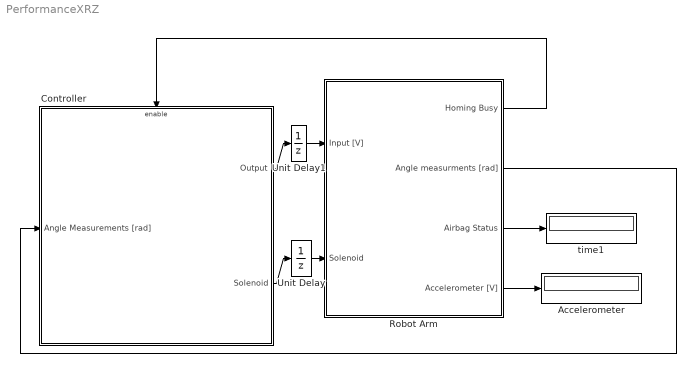
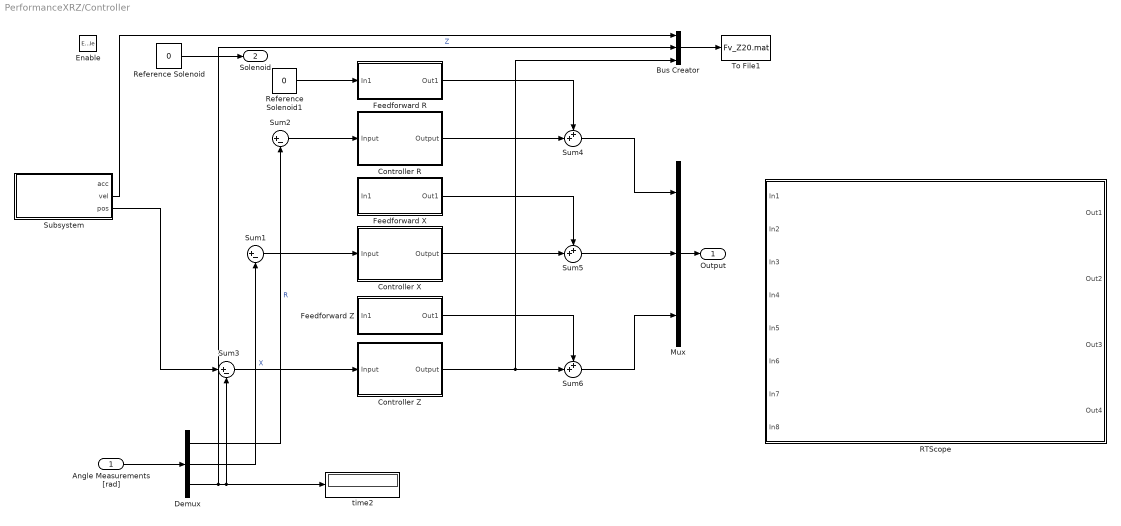
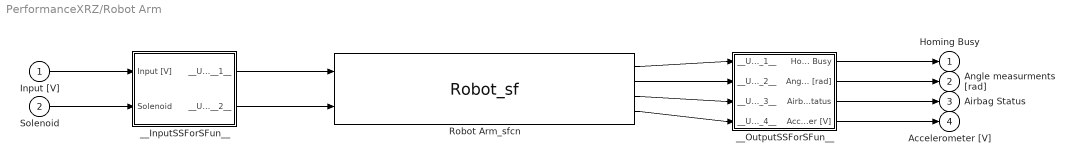
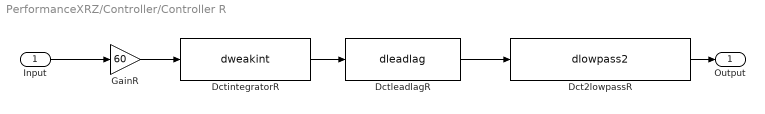
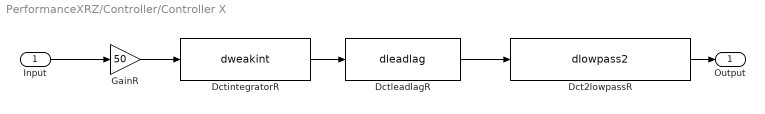
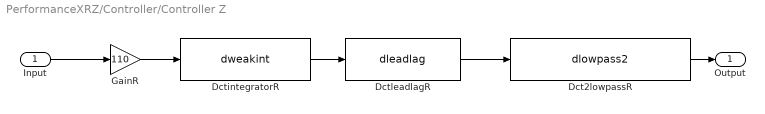
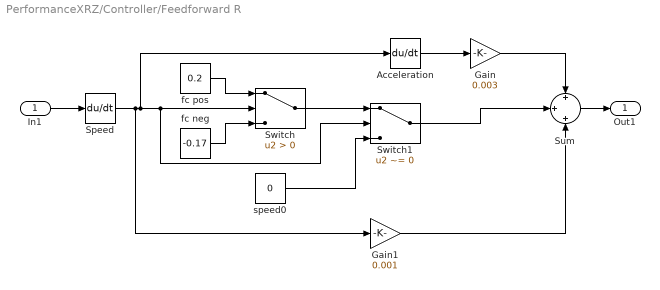
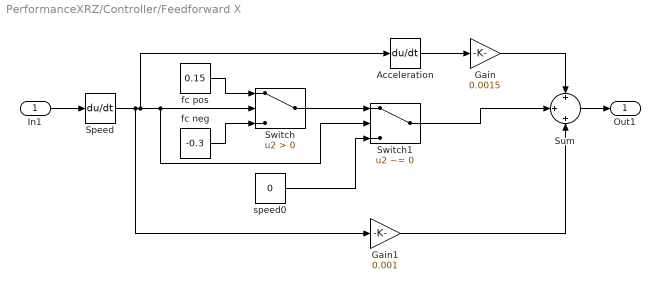
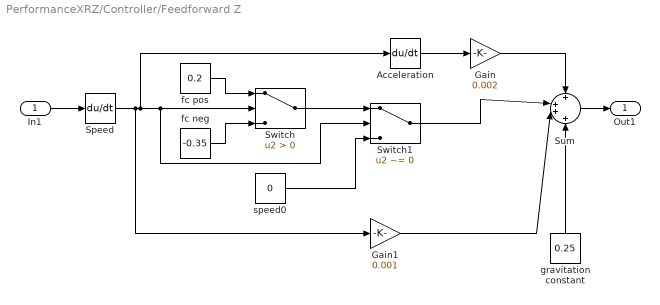
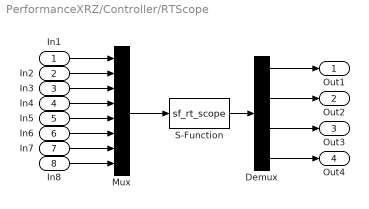
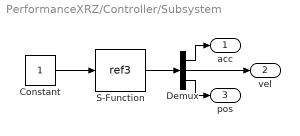
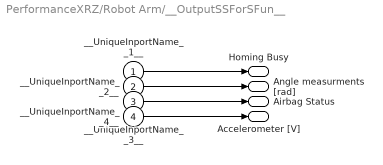
== system PerformanceXRZ/Robot Arm/__InputSSForSFun__ ==
  Input [V] : Inport
  Solenoid : Inport  Port=2
  __UniqueOutportName__1__ : Outport
  __UniqueOutportName__2__ : Outport  Port=2
  wires:
  Input [V]/1 -> __UniqueOutportName__1__/1
  Solenoid/1 -> __UniqueOutportName__2__/1

/*
 * PerformanceXRZ.c
 *
 * Code generation for model "PerformanceXRZ.mdl".
 *
 * Model version              : 1.943
 * Simulink Coder version : 8.1 (R2011b) 08-Jul-2011
 * C source code generated on : Mon Mar 21 19:34:07 2016
 *
 * Target selection: ectarget.tlc
 * Note: GRT includes extra infrastructure and instrumentation for prototyping
 * Embedded hardware selection: 32-bit Generic
 * Code generation objectives: Unspecified
 * Validation result: Not run
 */
#include "PerformanceXRZ.h"
#include "PerformanceXRZ_private.h"
#include "PerformanceXRZ_dt.h"
#undef S_FUNCTION_NAME
#if !defined(RTW_GENERATED_SFCN_TUNABLE_PRMS_Robot_sf)
#define RTW_GENERATED_SFCN_TUNABLE_PRMS_Robot_sf
#endif

#include "Robot_sf.h"

const real_T PerformanceXRZ_RGND = 0.0;/* real_T ground */

/* Block signals (auto storage) */
BlockIO_PerformanceXRZ PerformanceXRZ_B;

/* Block states (auto storage) */
D_Work_PerformanceXRZ PerformanceXRZ_DWork;

/* Real-time model */
RT_MODEL_PerformanceXRZ PerformanceXRZ_M_;
RT_MODEL_PerformanceXRZ *const PerformanceXRZ_M = &PerformanceXRZ_M_;

/*
 * Writes out MAT-file header.  Returns success or failure.
 * Returns:
 *      0 - success
 *      1 - failure
 */
int_T rt_WriteMat4FileHeader(FILE *fp, int32_T m, int32_T n, const char *name)
{
  typedef enum { ELITTLE_ENDIAN, EBIG_ENDIAN } ByteOrder;

  int16_T one = 1;
  ByteOrder byteOrder = (*((int8_T *)&one)==1) ? ELITTLE_ENDIAN : EBIG_ENDIAN;
  int32_T type = (byteOrder == ELITTLE_ENDIAN) ? 0: 1000;
  int32_T imagf = 0;
  int32_T name_len = strlen(name) + 1;
  if ((fwrite(&type, sizeof(int32_T), 1, fp) == 0) ||
      (fwrite(&m, sizeof(int32_T), 1, fp) == 0) ||
      (fwrite(&n, sizeof(int32_T), 1, fp) == 0) ||
      (fwrite(&imagf, sizeof(int32_T), 1, fp) == 0) ||
      (fwrite(&name_len, sizeof(int32_T), 1, fp) == 0) ||
      (fwrite(name, sizeof(char), name_len, fp) == 0)) {
    return(1);
  } else {
    return(0);
  }
}                                      /* end rt_WriteMat4FileHeader */

/* Model output function */
void PerformanceXRZ_output(int_T tid)
{
  /* local block i/o variables */
  real_T rtb_TmpSignalConversionAtToFile[3];
  real_T rtb_Switch1;
  real_T rtb_Gain;
  real_T rtb_Gain_o;
  real_T rtb_Sum;

  /* Reset subsysRan breadcrumbs */
  srClearBC(PerformanceXRZ_DWork.Controller_SubsysRanBC);

  /* UnitDelay: '<Root>/Unit Delay1' */
  /* RTWBLOCK_START_COMMENT */
  PerformanceXRZ_B.UnitDelay1[0] = PerformanceXRZ_DWork.UnitDelay1_DSTATE[0];
  PerformanceXRZ_B.UnitDelay1[1] = PerformanceXRZ_DWork.UnitDelay1_DSTATE[1];
  PerformanceXRZ_B.UnitDelay1[2] = PerformanceXRZ_DWork.UnitDelay1_DSTATE[2];

  /* UnitDelay: '<Root>/Unit Delay' */
  PerformanceXRZ_B.UnitDelay = PerformanceXRZ_DWork.UnitDelay_DSTATE;

  /* RTW Generated Level2 S-Function Block: '<S2>/Robot Arm_sfcn' (Robot_sf) */
  {
    SimStruct *rts = PerformanceXRZ_M->childSfunctions[11];
    sfcnOutputs(rts, 0);
  }

  /* Outputs for Enabled SubSystem: '<Root>/Controller' incorporates:
   *  EnablePort: '<S1>/Enable'
   */
  if (PerformanceXRZ_B.RobotArm_sfcn_o1 > 0.0) {
    if (!PerformanceXRZ_DWork.Controller_MODE) {
      PerformanceXRZ_DWork.Controller_MODE = TRUE;
    }
  } else {
    if (PerformanceXRZ_DWork.Controller_MODE) {
      PerformanceXRZ_DWork.Controller_MODE = FALSE;
    }
  }

  if (PerformanceXRZ_DWork.Controller_MODE) {
    /* Level2 S-Function Block: '<S10>/S-Function' (ref3) */
    {
      SimStruct *rts = PerformanceXRZ_M->childSfunctions[0];
      sfcnOutputs(rts, 0);
    }

    /* Gain: '<S5>/GainR' incorporates:
     *  Sum: '<S1>/Sum3'
     */
    PerformanceXRZ_B.GainR = (PerformanceXRZ_B.SFunction[2] -
      PerformanceXRZ_B.RobotArm_sfcn_o2[2]) * PerformanceXRZ_P.GainR_Gain;

    /* Level2 S-Function Block: '<S5>/DctintegratorR' (dweakint) */
    {
      SimStruct *rts = PerformanceXRZ_M->childSfunctions[1];
      sfcnOutputs(rts, 1);
    }

    /* Level2 S-Function Block: '<S5>/DctleadlagR' (dleadlag) */
    {
      SimStruct *rts = PerformanceXRZ_M->childSfunctions[2];
      sfcnOutputs(rts, 1);
    }

    /* Level2 S-Function Block: '<S5>/Dct2lowpassR' (dlowpass2) */
    {
      SimStruct *rts = PerformanceXRZ_M->childSfunctions[3];
      sfcnOutputs(rts, 1);
    }

    /* SignalConversion: '<S1>/TmpSignal ConversionAtTo File1Inport1' */
    rtb_TmpSignalConversionAtToFile[0] = PerformanceXRZ_B.SFunction[1];
    rtb_TmpSignalConversionAtToFile[1] = PerformanceXRZ_B.RobotArm_sfcn_o2[2];
    rtb_TmpSignalConversionAtToFile[2] = PerformanceXRZ_B.Dct2lowpassR;

    /* ToFile: '<S1>/To File1' */
    if (!(++PerformanceXRZ_DWork.ToFile1_IWORK.Decimation % 1) &&
        (PerformanceXRZ_DWork.ToFile1_IWORK.Count*4)+1 < 100000000 ) {
      FILE *fp = (FILE *) PerformanceXRZ_DWork.ToFile1_PWORK.FilePtr;
      if (fp != (NULL)) {
        real_T u[4];
        PerformanceXRZ_DWork.ToFile1_IWORK.Decimation = 0;
        u[0] = PerformanceXRZ_M->Timing.t[1];
        u[1] = rtb_TmpSignalConversionAtToFile[0];
        u[2] = rtb_TmpSignalConversionAtToFile[1];
        u[3] = rtb_TmpSignalConversionAtToFile[2];
        if (fwrite(u, sizeof(real_T), 4, fp) != 4) {
          rtmSetErrorStatus(PerformanceXRZ_M,
                            "Error writing to MAT-file Fv_Z20.mat");
          return;
        }

        if (((++PerformanceXRZ_DWork.ToFile1_IWORK.Count)*4)+1 >= 100000000) {
          (void)fprintf(stdout,
                        "*** The ToFile block will stop logging data before\n"
                        "    the simulation has ended, because it has reached\n"
                        "    the maximum number of elements (100000000)\n"
                        "    allowed in MAT-file Fv_Z20.mat.\n");
        }
      }
    }

    /* Gain: '<S3>/GainR' incorporates:
     *  Sum: '<S1>/Sum2'
     */
    PerformanceXRZ_B.GainR_g = (0.0 - PerformanceXRZ_B.RobotArm_sfcn_o2[0]) *
      PerformanceXRZ_P.GainR_Gain_f;

    /* Level2 S-Function Block: '<S3>/DctintegratorR' (dweakint) */
    {
      SimStruct *rts = PerformanceXRZ_M->childSfunctions[4];
      sfcnOutputs(rts, 1);
    }

    /* Level2 S-Function Block: '<S3>/DctleadlagR' (dleadlag) */
    {
      SimStruct *rts = PerformanceXRZ_M->childSfunctions[5];
      sfcnOutputs(rts, 1);
    }

    /* Level2 S-Function Block: '<S3>/Dct2lowpassR' (dlowpass2) */
    {
      SimStruct *rts = PerformanceXRZ_M->childSfunctions[6];
      sfcnOutputs(rts, 1);
    }

    /* Gain: '<S4>/GainR' incorporates:
     *  Sum: '<S1>/Sum1'
     */
    PerformanceXRZ_B.GainR_h = (0.0 - PerformanceXRZ_B.RobotArm_sfcn_o2[1]) *
      PerformanceXRZ_P.GainR_Gain_h;

    /* Level2 S-Function Block: '<S4>/DctintegratorR' (dweakint) */
    {
      SimStruct *rts = PerformanceXRZ_M->childSfunctions[7];
      sfcnOutputs(rts, 1);
    }

    /* Level2 S-Function Block: '<S4>/DctleadlagR' (dleadlag) */
    {
      SimStruct *rts = PerformanceXRZ_M->childSfunctions[8];
      sfcnOutputs(rts, 1);
    }

    /* Level2 S-Function Block: '<S4>/Dct2lowpassR' (dlowpass2) */
    {
      SimStruct *rts = PerformanceXRZ_M->childSfunctions[9];
      sfcnOutputs(rts, 1);
    }

    /* Derivative: '<S6>/Speed' */
    {
      real_T t = PerformanceXRZ_M->Timing.t[0];
      real_T timeStampA = PerformanceXRZ_DWork.Speed_RWORK.TimeStampA;
      real_T timeStampB = PerformanceXRZ_DWork.Speed_RWORK.TimeStampB;
      real_T *lastU = &PerformanceXRZ_DWork.Speed_RWORK.LastUAtTimeA;
      if (timeStampA >= t && timeStampB >= t) {
        PerformanceXRZ_B.Speed = 0.0;
      } else {
        real_T deltaT;
        real_T lastTime = timeStampA;
        if (timeStampA < timeStampB) {
          if (timeStampB < t) {
            lastTime = timeStampB;
            lastU = &PerformanceXRZ_DWork.Speed_RWORK.LastUAtTimeB;
          }
        } else if (timeStampA >= t) {
          lastTime = timeStampB;
          lastU = &PerformanceXRZ_DWork.Speed_RWORK.LastUAtTimeB;
        }

        deltaT = t - lastTime;
        PerformanceXRZ_B.Speed = (PerformanceXRZ_P.ReferenceSolenoid1_Value -
          *lastU++) / deltaT;
      }
    }

    /* Derivative: '<S6>/Acceleration' */
    {
      real_T t = PerformanceXRZ_M->Timing.t[0];
      real_T timeStampA = PerformanceXRZ_DWork.Acceleration_RWORK.TimeStampA;
      real_T timeStampB = PerformanceXRZ_DWork.Acceleration_RWORK.TimeStampB;
      real_T *lastU = &PerformanceXRZ_DWork.Acceleration_RWORK.LastUAtTimeA;
      if (timeStampA >= t && timeStampB >= t) {
        rtb_Switch1 = 0.0;
      } else {
        real_T deltaT;
        real_T lastTime = timeStampA;
        if (timeStampA < timeStampB) {
          if (timeStampB < t) {
            lastTime = timeStampB;
            lastU = &PerformanceXRZ_DWork.Acceleration_RWORK.LastUAtTimeB;
          }
        } else if (timeStampA >= t) {
          lastTime = timeStampB;
          lastU = &PerformanceXRZ_DWork.Acceleration_RWORK.LastUAtTimeB;
        }

        deltaT = t - lastTime;
        rtb_Switch1 = (PerformanceXRZ_B.Speed - *lastU++) / deltaT;
      }
    }

    /* Gain: '<S6>/Gain' */
    rtb_Gain = PerformanceXRZ_P.Gain_Gain * rtb_Switch1;

    /* Switch: '<S6>/Switch1' incorporates:
     *  Constant: '<S6>/speed0'
     */
    if (PerformanceXRZ_B.Speed != 0.0) {
      /* Switch: '<S6>/Switch' incorporates:
       *  Constant: '<S6>/fc neg'
       *  Constant: '<S6>/fc pos'
       */
      if (PerformanceXRZ_B.Speed > PerformanceXRZ_P.Switch_Threshold) {
        rtb_Switch1 = PerformanceXRZ_P.fcpos_Value;
      } else {
        rtb_Switch1 = PerformanceXRZ_P.fcneg_Value;
      }

      /* End of Switch: '<S6>/Switch' */
    } else {
      rtb_Switch1 = PerformanceXRZ_P.speed0_Value;
    }

    /* End of Switch: '<S6>/Switch1' */

    /* Sum: '<S6>/Sum' incorporates:
     *  Gain: '<S6>/Gain1'
     */
    rtb_Sum = (rtb_Gain + rtb_Switch1) + PerformanceXRZ_P.Gain1_Gain *
      PerformanceXRZ_B.Speed;

    /* Derivative: '<S7>/Speed' */
    {
      real_T t = PerformanceXRZ_M->Timing.t[0];
      real_T timeStampA = PerformanceXRZ_DWork.Speed_RWORK_f.TimeStampA;
      real_T timeStampB = PerformanceXRZ_DWork.Speed_RWORK_f.TimeStampB;
      real_T *lastU = &PerformanceXRZ_DWork.Speed_RWORK_f.LastUAtTimeA;
      if (timeStampA >= t && timeStampB >= t) {
        PerformanceXRZ_B.Speed_m = 0.0;
      } else {
        real_T deltaT;
        real_T lastTime = timeStampA;
        if (timeStampA < timeStampB) {
          if (timeStampB < t) {
            lastTime = timeStampB;
            lastU = &PerformanceXRZ_DWork.Speed_RWORK_f.LastUAtTimeB;
          }
        } else if (timeStampA >= t) {
          lastTime = timeStampB;
          lastU = &PerformanceXRZ_DWork.Speed_RWORK_f.LastUAtTimeB;
        }

        deltaT = t - lastTime;
        PerformanceXRZ_B.Speed_m = (0.0 - *lastU++) / deltaT;
      }
    }

    /* Derivative: '<S7>/Acceleration' */
    {
      real_T t = PerformanceXRZ_M->Timing.t[0];
      real_T timeStampA = PerformanceXRZ_DWork.Acceleration_RWORK_d.TimeStampA;
      real_T timeStampB = PerformanceXRZ_DWork.Acceleration_RWORK_d.TimeStampB;
      real_T *lastU = &PerformanceXRZ_DWork.Acceleration_RWORK_d.LastUAtTimeA;
      if (timeStampA >= t && timeStampB >= t) {
        rtb_Switch1 = 0.0;
      } else {
        real_T deltaT;
        real_T lastTime = timeStampA;
        if (timeStampA < timeStampB) {
          if (timeStampB < t) {
            lastTime = timeStampB;
            lastU = &PerformanceXRZ_DWork.Acceleration_RWORK_d.LastUAtTimeB;
          }
        } else if (timeStampA >= t) {
          lastTime = timeStampB;
          lastU = &PerformanceXRZ_DWork.Acceleration_RWORK_d.LastUAtTimeB;
        }

        deltaT = t - lastTime;
        rtb_Switch1 = (PerformanceXRZ_B.Speed_m - *lastU++) / deltaT;
      }
    }

    /* Gain: '<S7>/Gain' */
    rtb_Gain = PerformanceXRZ_P.Gain_Gain_b * rtb_Switch1;

    /* Switch: '<S7>/Switch1' incorporates:
     *  Constant: '<S7>/speed0'
     */
    if (PerformanceXRZ_B.Speed_m != 0.0) {
      /* Switch: '<S7>/Switch' incorporates:
       *  Constant: '<S7>/fc neg'
       *  Constant: '<S7>/fc pos'
       */
      if (PerformanceXRZ_B.Speed_m > PerformanceXRZ_P.Switch_Threshold_g) {
        rtb_Switch1 = PerformanceXRZ_P.fcpos_Value_g;
      } else {
        rtb_Switch1 = PerformanceXRZ_P.fcneg_Value_k;
      }

      /* End of Switch: '<S7>/Switch' */
    } else {
      rtb_Switch1 = PerformanceXRZ_P.speed0_Value_i;
    }

    /* End of Switch: '<S7>/Switch1' */

    /* Sum: '<S7>/Sum' incorporates:
     *  Gain: '<S7>/Gain1'
     */
    rtb_Gain = (rtb_Gain + rtb_Switch1) + PerformanceXRZ_P.Gain1_Gain_k *
      PerformanceXRZ_B.Speed_m;

    /* Derivative: '<S8>/Speed' */
    {
      real_T t = PerformanceXRZ_M->Timing.t[0];
      real_T timeStampA = PerformanceXRZ_DWork.Speed_RWORK_m.TimeStampA;
      real_T timeStampB = PerformanceXRZ_DWork.Speed_RWORK_m.TimeStampB;
      real_T *lastU = &PerformanceXRZ_DWork.Speed_RWORK_m.LastUAtTimeA;
      if (timeStampA >= t && timeStampB >= t) {
        PerformanceXRZ_B.Speed_f = 0.0;
      } else {
        real_T deltaT;
        real_T lastTime = timeStampA;
        if (timeStampA < timeStampB) {
          if (timeStampB < t) {
            lastTime = timeStampB;
            lastU = &PerformanceXRZ_DWork.Speed_RWORK_m.LastUAtTimeB;
          }
        } else if (timeStampA >= t) {
          lastTime = timeStampB;
          lastU = &PerformanceXRZ_DWork.Speed_RWORK_m.LastUAtTimeB;
        }

        deltaT = t - lastTime;
        PerformanceXRZ_B.Speed_f = (0.0 - *lastU++) / deltaT;
      }
    }

    /* Derivative: '<S8>/Acceleration' */
    {
      real_T t = PerformanceXRZ_M->Timing.t[0];
      real_T timeStampA = PerformanceXRZ_DWork.Acceleration_RWORK_j.TimeStampA;
      real_T timeStampB = PerformanceXRZ_DWork.Acceleration_RWORK_j.TimeStampB;
      real_T *lastU = &PerformanceXRZ_DWork.Acceleration_RWORK_j.LastUAtTimeA;
      if (timeStampA >= t && timeStampB >= t) {
        rtb_Switch1 = 0.0;
      } else {
        real_T deltaT;
        real_T lastTime = timeStampA;
        if (timeStampA < timeStampB) {
          if (timeStampB < t) {
            lastTime = timeStampB;
            lastU = &PerformanceXRZ_DWork.Acceleration_RWORK_j.LastUAtTimeB;
          }
        } else if (timeStampA >= t) {
          lastTime = timeStampB;
          lastU = &PerformanceXRZ_DWork.Acceleration_RWORK_j.LastUAtTimeB;
        }

        deltaT = t - lastTime;
        rtb_Switch1 = (PerformanceXRZ_B.Speed_f - *lastU++) / deltaT;
      }
    }

    /* Gain: '<S8>/Gain' */
    rtb_Gain_o = PerformanceXRZ_P.Gain_Gain_d * rtb_Switch1;

    /* Switch: '<S8>/Switch1' incorporates:
     *  Constant: '<S8>/speed0'
     */
    if (PerformanceXRZ_B.Speed_f != 0.0) {
      /* Switch: '<S8>/Switch' incorporates:
       *  Constant: '<S8>/fc neg'
       *  Constant: '<S8>/fc pos'
       */
      if (PerformanceXRZ_B.Speed_f > PerformanceXRZ_P.Switch_Threshold_p) {
        rtb_Switch1 = PerformanceXRZ_P.fcpos_Value_b;
      } else {
        rtb_Switch1 = PerformanceXRZ_P.fcneg_Value_i;
      }

      /* End of Switch: '<S8>/Switch' */
    } else {
      rtb_Switch1 = PerformanceXRZ_P.speed0_Value_b;
    }

    /* End of Switch: '<S8>/Switch1' */

    /* Sum: '<S1>/Sum4' */
    PerformanceXRZ_B.Sum4 = rtb_Sum + PerformanceXRZ_B.Dct2lowpassR_p;

    /* Sum: '<S1>/Sum5' */
    PerformanceXRZ_B.Sum5 = rtb_Gain + PerformanceXRZ_B.Dct2lowpassR_n;

    /* Sum: '<S1>/Sum6' incorporates:
     *  Constant: '<S8>/gravitation constant'
     *  Gain: '<S8>/Gain1'
     *  Sum: '<S8>/Sum'
     */
    PerformanceXRZ_B.Sum6 = (((rtb_Gain_o + rtb_Switch1) +
      PerformanceXRZ_P.Gain1_Gain_b * PerformanceXRZ_B.Speed_f) +
      PerformanceXRZ_P.gravitationconstant_Value) +
      PerformanceXRZ_B.Dct2lowpassR;

    /* Constant: '<S1>/Reference Solenoid' */
    PerformanceXRZ_B.ReferenceSolenoid =
      PerformanceXRZ_P.ReferenceSolenoid_Value;

    /* Level2 S-Function Block: '<S9>/S-Function' (sf_rt_scope) */
    {
      SimStruct *rts = PerformanceXRZ_M->childSfunctions[10];
      sfcnOutputs(rts, 0);
    }

    srUpdateBC(PerformanceXRZ_DWork.Controller_SubsysRanBC);
  }

  /* End of Outputs for SubSystem: '<Root>/Controller' */

  /* tid is required for a uniform function interface.
   * Argument tid is not used in the function. */
  UNUSED_PARAMETER(tid);
}

/* Model update function */
void PerformanceXRZ_update(int_T tid)
{
  /* Update for UnitDelay: '<Root>/Unit Delay1' */
  PerformanceXRZ_DWork.UnitDelay1_DSTATE[0] = PerformanceXRZ_B.Sum4;
  PerformanceXRZ_DWork.UnitDelay1_DSTATE[1] = PerformanceXRZ_B.Sum5;
  PerformanceXRZ_DWork.UnitDelay1_DSTATE[2] = PerformanceXRZ_B.Sum6;

  /* Update for UnitDelay: '<Root>/Unit Delay' */
  PerformanceXRZ_DWork.UnitDelay_DSTATE = PerformanceXRZ_B.ReferenceSolenoid;

  /* RTW Generated Level2 S-Function Block: '<S2>/Robot Arm_sfcn' (Robot_sf) */
  {
    SimStruct *rts = PerformanceXRZ_M->childSfunctions[11];
    sfcnUpdate(rts, 0);
    if (ssGetErrorStatus(rts) != (NULL))
      return;
  }

  /* Update for Enabled SubSystem: '<Root>/Controller' incorporates:
   *  Update for EnablePort: '<S1>/Enable'
   */
  if (PerformanceXRZ_DWork.Controller_MODE) {
    /* Update for Derivative: '<S6>/Speed' */
    {
      real_T timeStampA = PerformanceXRZ_DWork.Speed_RWORK.TimeStampA;
      real_T timeStampB = PerformanceXRZ_DWork.Speed_RWORK.TimeStampB;
      real_T* lastTime = &PerformanceXRZ_DWork.Speed_RWORK.TimeStampA;
      real_T* lastU = &PerformanceXRZ_DWork.Speed_RWORK.LastUAtTimeA;
      if (timeStampA != rtInf) {
        if (timeStampB == rtInf) {
          lastTime = &PerformanceXRZ_DWork.Speed_RWORK.TimeStampB;
          lastU = &PerformanceXRZ_DWork.Speed_RWORK.LastUAtTimeB;
        } else if (timeStampA >= timeStampB) {
          lastTime = &PerformanceXRZ_DWork.Speed_RWORK.TimeStampB;
          lastU = &PerformanceXRZ_DWork.Speed_RWORK.LastUAtTimeB;
        }
      }

      *lastTime = PerformanceXRZ_M->Timing.t[0];
      *lastU++ = PerformanceXRZ_P.ReferenceSolenoid1_Value;
    }

    /* Update for Derivative: '<S6>/Acceleration' */
    {
      real_T timeStampA = PerformanceXRZ_DWork.Acceleration_RWORK.TimeStampA;
      real_T timeStampB = PerformanceXRZ_DWork.Acceleration_RWORK.TimeStampB;
      real_T* lastTime = &PerformanceXRZ_DWork.Acceleration_RWORK.TimeStampA;
      real_T* lastU = &PerformanceXRZ_DWork.Acceleration_RWORK.LastUAtTimeA;
      if (timeStampA != rtInf) {
        if (timeStampB == rtInf) {
          lastTime = &PerformanceXRZ_DWork.Acceleration_RWORK.TimeStampB;
          lastU = &PerformanceXRZ_DWork.Acceleration_RWORK.LastUAtTimeB;
        } else if (timeStampA >= timeStampB) {
          lastTime = &PerformanceXRZ_DWork.Acceleration_RWORK.TimeStampB;
          lastU = &PerformanceXRZ_DWork.Acceleration_RWORK.LastUAtTimeB;
        }
      }

      *lastTime = PerformanceXRZ_M->Timing.t[0];
      *lastU++ = PerformanceXRZ_B.Speed;
    }

    /* Update for Derivative: '<S7>/Speed' */
    {
      real_T timeStampA = PerformanceXRZ_DWork.Speed_RWORK_f.TimeStampA;
      real_T timeStampB = PerformanceXRZ_DWork.Speed_RWORK_f.TimeStampB;
      real_T* lastTime = &PerformanceXRZ_DWork.Speed_RWORK_f.TimeStampA;
      real_T* lastU = &PerformanceXRZ_DWork.Speed_RWORK_f.LastUAtTimeA;
      if (timeStampA != rtInf) {
        if (timeStampB == rtInf) {
          lastTime = &PerformanceXRZ_DWork.Speed_RWORK_f.TimeStampB;
          lastU = &PerformanceXRZ_DWork.Speed_RWORK_f.LastUAtTimeB;
        } else if (timeStampA >= timeStampB) {
          lastTime = &PerformanceXRZ_DWork.Speed_RWORK_f.TimeStampB;
          lastU = &PerformanceXRZ_DWork.Speed_RWORK_f.LastUAtTimeB;
        }
      }

      *lastTime = PerformanceXRZ_M->Timing.t[0];
      *lastU++ = 0.0;
    }

    /* Update for Derivative: '<S7>/Acceleration' */
    {
      real_T timeStampA = PerformanceXRZ_DWork.Acceleration_RWORK_d.TimeStampA;
      real_T timeStampB = PerformanceXRZ_DWork.Acceleration_RWORK_d.TimeStampB;
      real_T* lastTime = &PerformanceXRZ_DWork.Acceleration_RWORK_d.TimeStampA;
      real_T* lastU = &PerformanceXRZ_DWork.Acceleration_RWORK_d.LastUAtTimeA;
      if (timeStampA != rtInf) {
        if (timeStampB == rtInf) {
          lastTime = &PerformanceXRZ_DWork.Acceleration_RWORK_d.TimeStampB;
          lastU = &PerformanceXRZ_DWork.Acceleration_RWORK_d.LastUAtTimeB;
        } else if (timeStampA >= timeStampB) {
          lastTime = &PerformanceXRZ_DWork.Acceleration_RWORK_d.TimeStampB;
          lastU = &PerformanceXRZ_DWork.Acceleration_RWORK_d.LastUAtTimeB;
        }
      }

      *lastTime = PerformanceXRZ_M->Timing.t[0];
      *lastU++ = PerformanceXRZ_B.Speed_m;
    }

    /* Update for Derivative: '<S8>/Speed' */
    {
      real_T timeStampA = PerformanceXRZ_DWork.Speed_RWORK_m.TimeStampA;
      real_T timeStampB = PerformanceXRZ_DWork.Speed_RWORK_m.TimeStampB;
      real_T* lastTime = &PerformanceXRZ_DWork.Speed_RWORK_m.TimeStampA;
      real_T* lastU = &PerformanceXRZ_DWork.Speed_RWORK_m.LastUAtTimeA;
      if (timeStampA != rtInf) {
        if (timeStampB == rtInf) {
          lastTime = &PerformanceXRZ_DWork.Speed_RWORK_m.TimeStampB;
          lastU = &PerformanceXRZ_DWork.Speed_RWORK_m.LastUAtTimeB;
        } else if (timeStampA >= timeStampB) {
          lastTime = &PerformanceXRZ_DWork.Speed_RWORK_m.TimeStampB;
          lastU = &PerformanceXRZ_DWork.Speed_RWORK_m.LastUAtTimeB;
        }
      }

      *lastTime = PerformanceXRZ_M->Timing.t[0];
      *lastU++ = 0.0;
    }

    /* Update for Derivative: '<S8>/Acceleration' */
    {
      real_T timeStampA = PerformanceXRZ_DWork.Acceleration_RWORK_j.TimeStampA;
      real_T timeStampB = PerformanceXRZ_DWork.Acceleration_RWORK_j.TimeStampB;
      real_T* lastTime = &PerformanceXRZ_DWork.Acceleration_RWORK_j.TimeStampA;
      real_T* lastU = &PerformanceXRZ_DWork.Acceleration_RWORK_j.LastUAtTimeA;
      if (timeStampA != rtInf) {
        if (timeStampB == rtInf) {
          lastTime = &PerformanceXRZ_DWork.Acceleration_RWORK_j.TimeStampB;
          lastU = &PerformanceXRZ_DWork.Acceleration_RWORK_j.LastUAtTimeB;
        } else if (timeStampA >= timeStampB) {
          lastTime = &PerformanceXRZ_DWork.Acceleration_RWORK_j.TimeStampB;
          lastU = &PerformanceXRZ_DWork.Acceleration_RWORK_j.LastUAtTimeB;
        }
      }

      *lastTime = PerformanceXRZ_M->Timing.t[0];
      *lastU++ = PerformanceXRZ_B.Speed_f;
    }
  }

  /* End of Update for SubSystem: '<Root>/Controller' */

  /* Update absolute time for base rate */
  /* The "clockTick0" counts the number of times the code of this task has
   * been executed. The absolute time is the multiplication of "clockTick0"
   * and "Timing.stepSize0". Size of "clockTick0" ensures timer will not
   * overflow during the application lifespan selected.
   * Timer of this task consists of two 32 bit unsigned integers.
   * The two integers represent the low bits Timing.clockTick0 and the high bits
   * Timing.clockTickH0. When the low bit overflows to 0, the high bits increment.
   */
  if (!(++PerformanceXRZ_M->Timing.clockTick0)) {
    ++PerformanceXRZ_M->Timing.clockTickH0;
  }

  PerformanceXRZ_M->Timing.t[0] = PerformanceXRZ_M->Timing.clockTick0 *
    PerformanceXRZ_M->Timing.stepSize0 + PerformanceXRZ_M->Timing.clockTickH0 *
    PerformanceXRZ_M->Timing.stepSize0 * 4294967296.0;

  {
    /* Update absolute timer for sample time: [0.000244140625s, 0.0s] */
    /* The "clockTick1" counts the number of times the code of this task has
     * been executed. The absolute time is the multiplication of "clockTick1"
     * and "Timing.stepSize1". Size of "clockTick1" ensures timer will not
     * overflow during the application lifespan selected.
     * Timer of this task consists of two 32 bit unsigned integers.
     * The two integers represent the low bits Timing.clockTick1 and the high bits
     * Timing.clockTickH1. When the low bit overflows to 0, the high bits increment.
     */
    if (!(++PerformanceXRZ_M->Timing.clockTick1)) {
      ++PerformanceXRZ_M->Timing.clockTickH1;
    }

    PerformanceXRZ_M->Timing.t[1] = PerformanceXRZ_M->Timing.clockTick1 *
      PerformanceXRZ_M->Timing.stepSize1 + PerformanceXRZ_M->Timing.clockTickH1 *
      PerformanceXRZ_M->Timing.stepSize1 * 4294967296.0;
  }

  /* tid is required for a uniform function interface.
   * Argument tid is not used in the function. */
  UNUSED_PARAMETER(tid);
}
